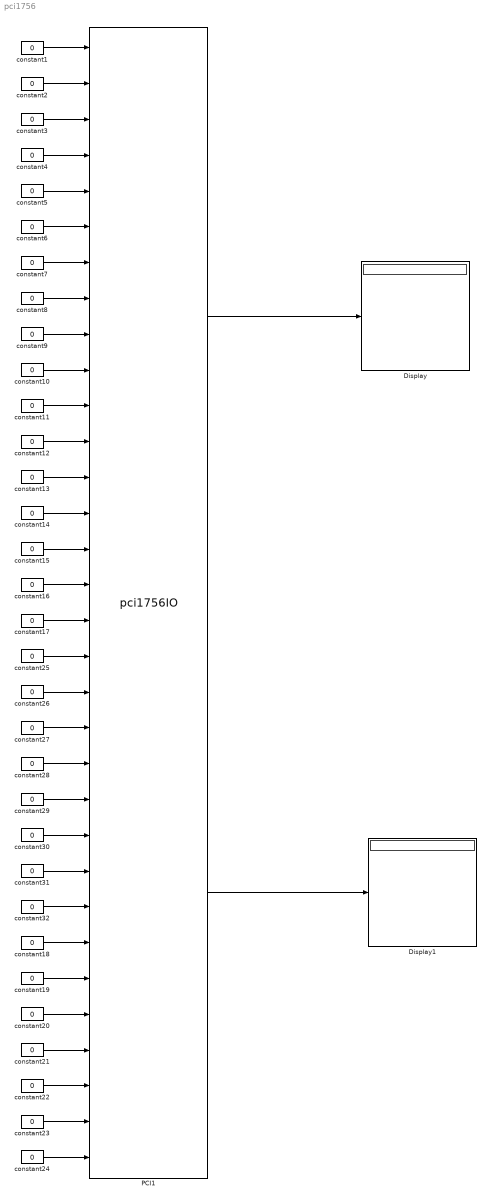
/*
 * pci1756.c
 *
 * Code generation for model "pci1756".
 *
 * Model version              : 1.9
 * Simulink Coder version : 8.11 (R2016b) 25-Aug-2016
 * C source code generated on : Tue Jul 13 12:01:46 2021
 *
 * Target selection: slrt.tlc
 * Note: GRT includes extra infrastructure and instrumentation for prototyping
 * Embedded hardware selection: Generic->32-bit x86 compatible
 * Code generation objectives: Unspecified
 * Validation result: Not run
 */

#include "rt_logging_mmi.h"
#include "pci1756_capi.h"
#include "pci1756.h"
#include "pci1756_private.h"

/* Block signals (auto storage) */
B_pci1756_T pci1756_B;

/* Block states (auto storage) */
DW_pci1756_T pci1756_DW;

/* Real-time model */
RT_MODEL_pci1756_T pci1756_M_;
RT_MODEL_pci1756_T *const pci1756_M = &pci1756_M_;

/* Model output function */
static void pci1756_output(void)
{
  /* Constant: '<Root>/constant1' */
  pci1756_B.constant1 = pci1756_P.constant1_Value;

  /* Constant: '<Root>/constant2' */
  pci1756_B.constant2 = pci1756_P.constant2_Value;

  /* Constant: '<Root>/constant3' */
  pci1756_B.constant3 = pci1756_P.constant3_Value;

  /* Constant: '<Root>/constant4' */
  pci1756_B.constant4 = pci1756_P.constant4_Value;

  /* Constant: '<Root>/constant5' */
  pci1756_B.constant5 = pci1756_P.constant5_Value;

  /* Constant: '<Root>/constant6' */
  pci1756_B.constant6 = pci1756_P.constant6_Value;

  /* Constant: '<Root>/constant7' */
  pci1756_B.constant7 = pci1756_P.constant7_Value;

  /* Constant: '<Root>/constant8' */
  pci1756_B.constant8 = pci1756_P.constant8_Value;

  /* Constant: '<Root>/constant9' */
  pci1756_B.constant9 = pci1756_P.constant9_Value;

  /* Constant: '<Root>/constant10' */
  pci1756_B.constant10 = pci1756_P.constant10_Value;

  /* Constant: '<Root>/constant11' */
  pci1756_B.constant11 = pci1756_P.constant11_Value;

  /* Constant: '<Root>/constant12' */
  pci1756_B.constant12 = pci1756_P.constant12_Value;

  /* Constant: '<Root>/constant13' */
  pci1756_B.constant13 = pci1756_P.constant13_Value;

  /* Constant: '<Root>/constant14' */
  pci1756_B.constant14 = pci1756_P.constant14_Value;

  /* Constant: '<Root>/constant15' */
  pci1756_B.constant15 = pci1756_P.constant15_Value;

  /* Constant: '<Root>/constant16' */
  pci1756_B.constant16 = pci1756_P.constant16_Value;

  /* Constant: '<Root>/constant17' */
  pci1756_B.constant17 = pci1756_P.constant17_Value;

  /* Constant: '<Root>/constant25' */
  pci1756_B.constant25 = pci1756_P.constant25_Value;

  /* Constant: '<Root>/constant26' */
  pci1756_B.constant26 = pci1756_P.constant26_Value;

  /* Constant: '<Root>/constant27' */
  pci1756_B.constant27 = pci1756_P.constant27_Value;

  /* Constant: '<Root>/constant28' */
  pci1756_B.constant28 = pci1756_P.constant28_Value;

  /* Constant: '<Root>/constant29' */
  pci1756_B.constant29 = pci1756_P.constant29_Value;

  /* Constant: '<Root>/constant30' */
  pci1756_B.constant30 = pci1756_P.constant30_Value;

  /* Constant: '<Root>/constant31' */
  pci1756_B.constant31 = pci1756_P.constant31_Value;

  /* Constant: '<Root>/constant32' */
  pci1756_B.constant32 = pci1756_P.constant32_Value;

  /* Constant: '<Root>/constant18' */
  pci1756_B.constant18 = pci1756_P.constant18_Value;

  /* Constant: '<Root>/constant19' */
  pci1756_B.constant19 = pci1756_P.constant19_Value;

  /* Constant: '<Root>/constant20' */
  pci1756_B.constant20 = pci1756_P.constant20_Value;

  /* Constant: '<Root>/constant21' */
  pci1756_B.constant21 = pci1756_P.constant21_Value;

  /* Constant: '<Root>/constant22' */
  pci1756_B.constant22 = pci1756_P.constant22_Value;

  /* Constant: '<Root>/constant23' */
  pci1756_B.constant23 = pci1756_P.constant23_Value;

  /* Constant: '<Root>/constant24' */
  pci1756_B.constant24 = pci1756_P.constant24_Value;

  /* Level2 S-Function Block: '<Root>/PCI1' (pci1756IO) */
  {
    SimStruct *rts = pci1756_M->childSfunctions[0];
    sfcnOutputs(rts, 0);
  }
}

/* Model update function */
static void pci1756_update(void)
{
  /* Update absolute time for base rate */
  /* The "clockTick0" counts the number of times the code of this task has
   * been executed. The absolute time is the multiplication of "clockTick0"
   * and "Timing.stepSize0". Size of "clockTick0" ensures timer will not
   * overflow during the application lifespan selected.
   * Timer of this task consists of two 32 bit unsigned integers.
   * The two integers represent the low bits Timing.clockTick0 and the high bits
   * Timing.clockTickH0. When the low bit overflows to 0, the high bits increment.
   */
  if (!(++pci1756_M->Timing.clockTick0)) {
    ++pci1756_M->Timing.clockTickH0;
  }

  pci1756_M->Timing.t[0] = pci1756_M->Timing.clockTick0 *
    pci1756_M->Timing.stepSize0 + pci1756_M->Timing.clockTickH0 *
    pci1756_M->Timing.stepSize0 * 4294967296.0;
}
